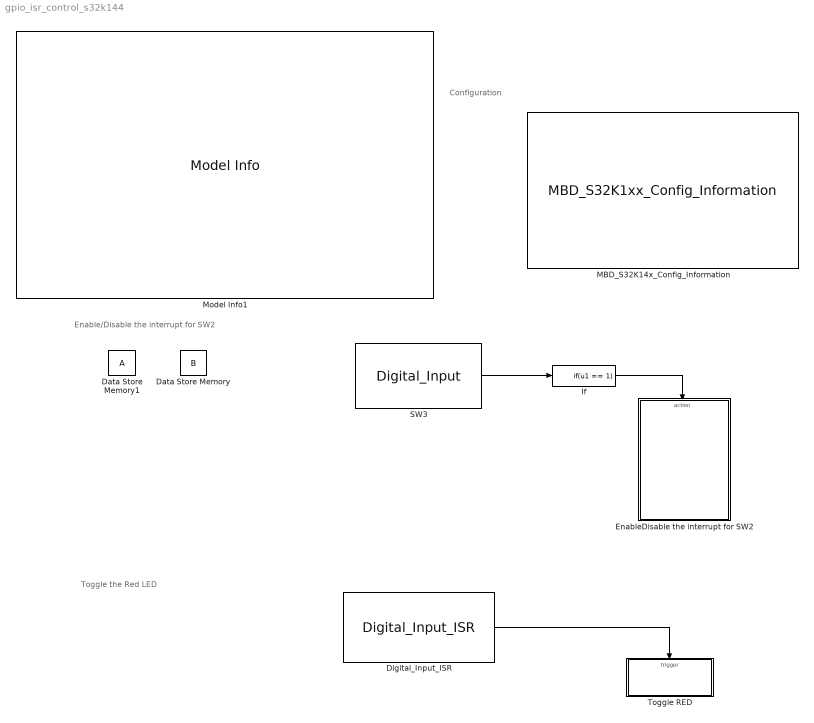
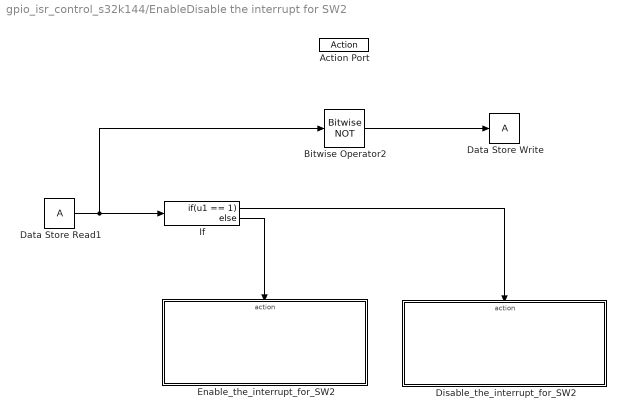
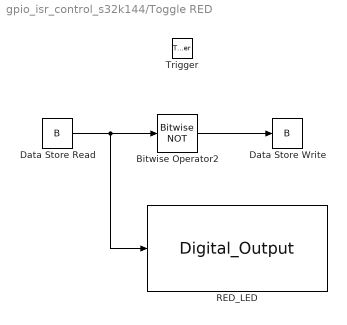
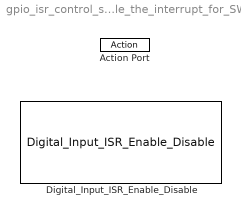
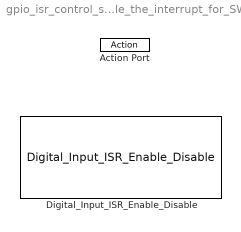
/*
 * Academic License - for use in teaching, academic research, and meeting
 * course requirements at degree granting institutions only.  Not for
 * government, commercial, or other organizational use.
 *
 * File: gpio_isr_control_s32k144.c
 *
 * Code generated for Simulink model 'gpio_isr_control_s32k144'.
 *
 * Model version                   : 1.178
 * Simulink Coder version          : 9.0 (R2018b) 24-May-2018
 * MBDT for S32K1xx Series Version : 4.1.0 (R2017b-R2019a) 22-Jul-2019
 * C/C++ source code generated on  : Sat Apr  4 21:07:25 2020
 *
 * Target selection: mbd_s32k.tlc
 * Embedded hardware selection: ARM Compatible->ARM Cortex
 * Code generation objectives: Unspecified
 * Validation result: Not run
 */

#include "gpio_isr_control_s32k144.h"
#include "gpio_isr_control_s32k144_private.h"

/* Block signals (default storage) */
B_gpio_isr_control_s32k144_T gpio_isr_control_s32k144_B;

/* Block states (default storage) */
DW_gpio_isr_control_s32k144_T gpio_isr_control_s32k144_DW;

/* Real-time model */
RT_MODEL_gpio_isr_control_s32_T gpio_isr_control_s32k144_M_;
RT_MODEL_gpio_isr_control_s32_T *const gpio_isr_control_s32k144_M =
  &gpio_isr_control_s32k144_M_;
void GPIPORTC12_callback (void)
{
  /* Output and update for function-call system: '<Root>/Toggle RED' */

  /* DataStoreRead: '<S3>/Data Store Read' */
  gpio_isr_control_s32k144_B.DataStoreRead = gpio_isr_control_s32k144_DW.B;

  /* S-Function (sfix_bitop): '<S3>/Bitwise Operator2' incorporates:
   *  DataStoreWrite: '<S3>/Data Store Write'
   */
  gpio_isr_control_s32k144_DW.B = !gpio_isr_control_s32k144_B.DataStoreRead;

  /* S-Function (gpio_s32k_output): '<S3>/RED_LED' */

  /* GPOPORTD15 Data Signal Update */
  if (gpio_isr_control_s32k144_B.DataStoreRead) {
    PINS_DRV_SetPins(PTD, 1UL<<15);
  } else {
    PINS_DRV_ClearPins(PTD, 1UL<<15);
  }

  /* Clear interrupt flag */
  PINS_DRV_ClearPinIntFlagCmd(PORTC, 12);
}

/* Output and update for action system: '<S1>/Disable_the_interrupt_for_SW2' */
void g_Disable_the_interrupt_for_SW2(void)
{
  /* S-Function (gpi_s32k_isr_control): '<S4>/Digital_Input_ISR_Enable_Disable' */

  /* Set GPIPORTC12 interrupt configuration. */
  PINS_DRV_SetPinIntSel(PORTC, 12, PORT_DMA_INT_DISABLED);
}

/* Output and update for action system: '<S1>/Enable_the_interrupt_for_SW2' */
void gp_Enable_the_interrupt_for_SW2(void)
{
  /* S-Function (gpi_s32k_isr_control): '<S5>/Digital_Input_ISR_Enable_Disable' */

  /* Set GPIPORTC12 interrupt configuration. */
  PINS_DRV_SetPinIntSel(PORTC, 12, PORT_INT_FALLING_EDGE);
}

/* Model step function */
void gpio_isr_control_s32k144_step(void)
{
  boolean_T rtb_DataStoreRead1;

  /* End of Outputs for S-Function (gpi_s32k_isr): '<Root>/Digital_Input_ISR' */

  /* S-Function (gpio_s32k_input): '<Root>/SW3' */

  /* GPIPORTC13 signal update */
  gpio_isr_control_s32k144_B.SW3 = (PINS_DRV_ReadPins(PTC) >> 13) & 0x01;

  /* If: '<Root>/If' */
  if (gpio_isr_control_s32k144_B.SW3) {
    /* Outputs for IfAction SubSystem: '<Root>/EnableDisable the interrupt for SW2' incorporates:
     *  ActionPort: '<S1>/Action Port'
     */
    /* DataStoreRead: '<S1>/Data Store Read1' */
    rtb_DataStoreRead1 = gpio_isr_control_s32k144_DW.A;

    /* S-Function (sfix_bitop): '<S1>/Bitwise Operator2' incorporates:
     *  DataStoreRead: '<S1>/Data Store Read1'
     *  DataStoreWrite: '<S1>/Data Store Write'
     */
    gpio_isr_control_s32k144_DW.A = !gpio_isr_control_s32k144_DW.A;

    /* If: '<S1>/If' */
    if (rtb_DataStoreRead1) {
      /* Outputs for IfAction SubSystem: '<S1>/Disable_the_interrupt_for_SW2' incorporates:
       *  ActionPort: '<S4>/Action Port'
       */
      g_Disable_the_interrupt_for_SW2();

      /* End of Outputs for SubSystem: '<S1>/Disable_the_interrupt_for_SW2' */
    } else {
      /* Outputs for IfAction SubSystem: '<S1>/Enable_the_interrupt_for_SW2' incorporates:
       *  ActionPort: '<S5>/Action Port'
       */
      gp_Enable_the_interrupt_for_SW2();

      /* End of Outputs for SubSystem: '<S1>/Enable_the_interrupt_for_SW2' */
    }

    /* End of If: '<S1>/If' */
    /* End of Outputs for SubSystem: '<Root>/EnableDisable the interrupt for SW2' */
  }

  /* End of If: '<Root>/If' */
}
